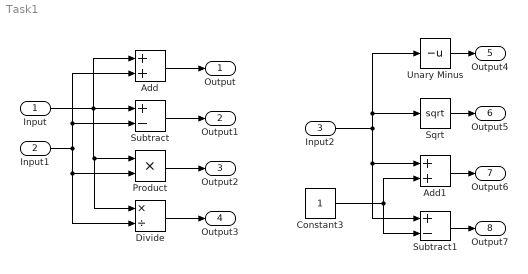
/*
 * File: Task1.c
 *
 * Code generated for Simulink model 'Task1'.
 *
 * Model version                  : 1.2
 * Simulink Coder version         : 9.5 (R2021a) 14-Nov-2020
 * C/C++ source code generated on : Mon Jan 29 10:59:51 2024
 *
 * Target selection: ert.tlc
 * Embedded hardware selection: Intel->x86-64 (Windows64)
 * Code generation objectives: Unspecified
 * Validation result: Not run
 */

#include "Task1.h"
#include "Task1_private.h"

/* External inputs (root inport signals with default storage) */
ExtU_Task1_T Task1_U;

/* External outputs (root outports fed by signals with default storage) */
ExtY_Task1_T Task1_Y;

/* Real-time model */
static RT_MODEL_Task1_T Task1_M_;
RT_MODEL_Task1_T *const Task1_M = &Task1_M_;

/* Model step function */
void Task1_step(void)
{
  /* Outport: '<Root>/Output' incorporates:
   *  Inport: '<Root>/Input'
   *  Inport: '<Root>/Input1'
   *  Sum: '<Root>/Add'
   */
  Task1_Y.Output = Task1_U.Input + Task1_U.Input1;

  /* Outport: '<Root>/Output1' incorporates:
   *  Inport: '<Root>/Input'
   *  Inport: '<Root>/Input1'
   *  Sum: '<Root>/Subtract'
   */
  Task1_Y.Output1 = Task1_U.Input - Task1_U.Input1;

  /* Outport: '<Root>/Output2' incorporates:
   *  Inport: '<Root>/Input'
   *  Inport: '<Root>/Input1'
   *  Product: '<Root>/Product'
   */
  Task1_Y.Output2 = Task1_U.Input * Task1_U.Input1;

  /* Outport: '<Root>/Output3' incorporates:
   *  Inport: '<Root>/Input'
   *  Inport: '<Root>/Input1'
   *  Product: '<Root>/Divide'
   */
  Task1_Y.Output3 = Task1_U.Input / Task1_U.Input1;

  /* Outport: '<Root>/Output4' incorporates:
   *  Inport: '<Root>/Input2'
   *  UnaryMinus: '<Root>/Unary Minus'
   */
  Task1_Y.Output4 = -Task1_U.Input2;

  /* Outport: '<Root>/Output5' incorporates:
   *  Inport: '<Root>/Input2'
   *  Sqrt: '<Root>/Sqrt'
   */
  Task1_Y.Output5 = sqrt(Task1_U.Input2);

  /* Outport: '<Root>/Output6' incorporates:
   *  Constant: '<Root>/Constant3'
   *  Inport: '<Root>/Input2'
   *  Sum: '<Root>/Add1'
   */
  Task1_Y.Output6 = Task1_U.Input2 + 1.0;

  /* Outport: '<Root>/Output7' incorporates:
   *  Constant: '<Root>/Constant3'
   *  Inport: '<Root>/Input2'
   *  Sum: '<Root>/Subtract1'
   */
  Task1_Y.Output7 = Task1_U.Input2 - 1.0;
}
